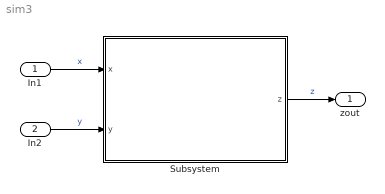
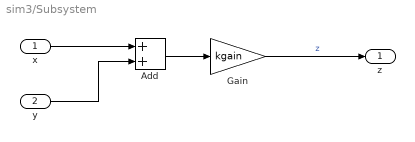
/*
 * File: sim3.c
 *
 * Code generated for Simulink model 'sim3'.
 *
 * Model version                  : 1.5
 * Simulink Coder version         : 24.1 (R2024a) 19-Nov-2023
 * C/C++ source code generated on : Thu Jan 29 23:52:15 2026
 *
 * Target selection: ert.tlc
 * Embedded hardware selection: Intel->x86-64 (Windows64)
 * Code generation objectives: Unspecified
 * Validation result: Not run
 */

#include "sim3.h"
#include <stdint.h>
#include "sim3_private.h"

/* Exported block signals */
uint16_t z;                            /* '<S1>/Gain' */

/* Exported data definition */

/* ConstVolatile memory section */
/* Definition for custom storage class: ConstVolatile */
const volatile uint8_t kgain = 2U;     /* Referenced by: '<S1>/Gain' */

/* Real-time model */
static RT_MODEL_sim3_T sim3_M_;
RT_MODEL_sim3_T *const sim3_M = &sim3_M_;

/* Model step function */
void sim3_step(void)
{
  uint8_t tmp;

  /* Gain: '<S1>/Gain' */
  if (kgain > 3) {
    tmp = UINT8_MAX;
  } else {
    tmp = (uint8_t)(kgain << 6);
  }

  /* Gain: '<S1>/Gain' incorporates:
   *  Inport: '<Root>/In1'
   *  Inport: '<Root>/In2'
   *  Sum: '<S1>/Add'
   */
  z = (uint16_t)((uint32_t)(uint8_t)(x + y) * tmp);
}
